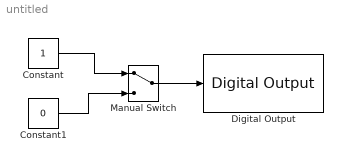
/*
 * File: untitled.c
 *
 * Code generated for Simulink model 'untitled'.
 *
 * Model version                  : 1.0
 * Simulink Coder version         : 9.8 (R2022b) 13-May-2022
 * C/C++ source code generated on : Sat Mar 16 21:55:22 2024
 *
 * Target selection: ert.tlc
 * Embedded hardware selection: Atmel->AVR
 * Code generation objectives: Unspecified
 * Validation result: Not run
 */

#include "untitled.h"
#include "rtwtypes.h"

/* Block states (default storage) */
DW_untitled_T untitled_DW;

/* Real-time model */
static RT_MODEL_untitled_T untitled_M_;
RT_MODEL_untitled_T *const untitled_M = &untitled_M_;

/* Model step function */
void untitled_step(void)
{
  boolean_T tmp;

  /* ManualSwitch: '<Root>/Manual Switch' incorporates:
   *  Constant: '<Root>/Constant'
   *  Constant: '<Root>/Constant1'
   */
  if (untitled_P.ManualSwitch_CurrentSetting == 1) {
    tmp = untitled_P.Constant_Value;
  } else {
    tmp = untitled_P.Constant1_Value;
  }

  /* MATLABSystem: '<Root>/Digital Output' incorporates:
   *  ManualSwitch: '<Root>/Manual Switch'
   */
  writeDigitalPin(9, (uint8_T)tmp);
}
